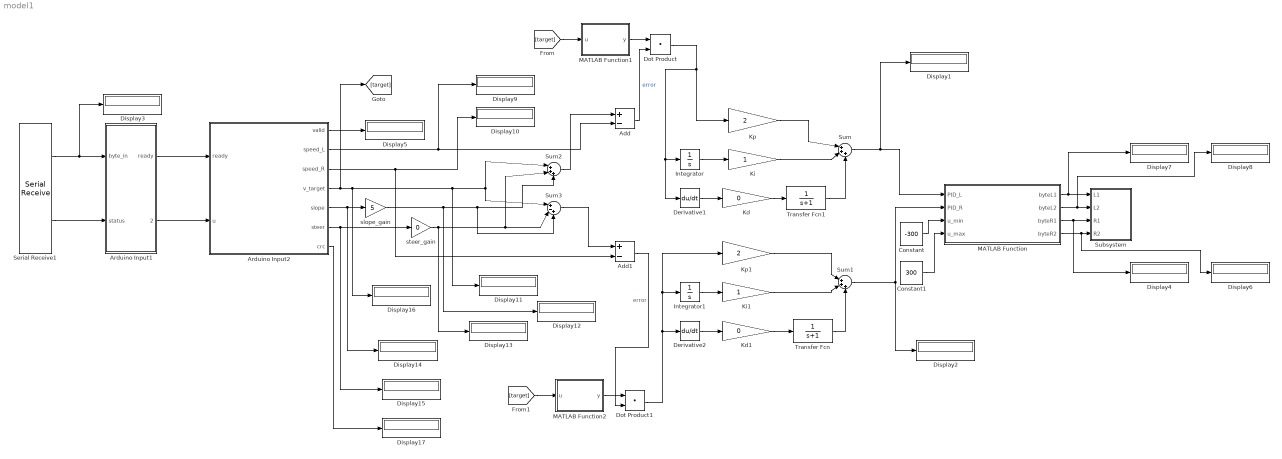
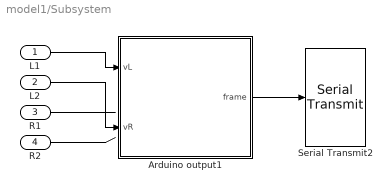
== matlab function model1/MATLAB Function1 ==
function y = fcn(u)

if u<1 && u > -1
    y=0;
else
    y=1;
end

== matlab function model1/MATLAB Function ==
function [byteL1, byteL2, byteR1, byteR2] = encode_pwm_duty(PID_L, PID_R, u_min, u_max)
% PID_L, PID_R : PID 제어기 출력값 (실수형)
% u_min, u_max : PID 출력 예상 범위 (예: -4050 ~ +4050)

% 매핑 대상 범위
min_duty = -1000;
max_duty = 1000;

%% 매핑 함수 정의
map_to_range = @(u) ((u - u_min) / (u_max - u_min)) * (max_duty - min_duty) + min_duty;

% 매핑 수행
dutyL = int16(round(map_to_range(PID_L)));  % 정수로 변환
dutyR = int16(round(map_to_range(PID_R)));

% MSB/LSB 분리
byteL2 = bitand(dutyL, 255);         % LSB
byteL1 = bitshift(dutyL, -8);        % MSB

byteR2 = bitand(dutyR, 255);
byteR1 = bitshift(dutyR, -8);

== matlab function model1/Arduino Input2 ==
function [valid, speed_L, speed_R, v_target, slope, steer, crc] =  Arduino_Input2( ready, u)
% UART 패킷 파서 (persistent 방식으로 이전 값 유지)
% u: [10x1] uint8, 패킷 데이터
% ready: 패킷 유효 신호

%#codegen

% 이전 출력값 저장용 persistent 변수
persistent p_valid p_speed_L p_speed_R p_v_target p_slope p_steer p_crc
 
% 초기화 (최초 실행 시)
if isempty(p_valid)
    p_valid = false;
    p_speed_L = 0.0;
    p_speed_R = 0.0;
    p_v_target = uint16(0);
    p_slope = double(0);
    p_steer = double(0);
    p_crc = uint8(0);
end

% 새로운 데이터가 들어왔을 경우만 업데이트
if ready == 1
    % data_sum = uint16((2)) + uint16(u(3)) + uint16(u(4)) + uint16(u(5)) + uint16(u(6)) + uint16(u(7)) + uint16(u(8)) + uint16(u(9));
    % if (0xFF & data_sum) == 0
        p_valid = true;
        p_speed_L = (double(u(2)-1) + double(u(3)-1)/100)*10;
        p_speed_R = (double(u(4)-1) + double(u(5)-1)/100)*10;
        if u(7)==1
            u(7)=u(7)-1;
        end
        p_v_target = uint16(u(7)-1)*10;
        if double(u(6)) <= 30 && double(u(6)) >= -30
            p_slope = double(u(6));
        end

        if double(u(8)) <= 30 && double(u(8)) >= -30
            p_steer = double(u(8));
        end
        p_crc = u(9);
    % end
end

% 항상 마지막 유효 출력 반환
valid     = p_valid;
speed_L   = p_speed_L;
speed_R   = p_speed_R;
v_target  = p_v_target;
slope     = p_slope;
steer     = p_steer;
crc       = p_crc;

== matlab function model1/Arduino Input1 ==
function [ready, data_out] = uart_parser(byte_in, status)
% UART 프레임 수신기 (Start Byte = 0xAA, Total = 10 bytes)
% 입력: byte_in - 1바이트씩 들어오는 uint8
% 입력: status - Serial Receive의 상태 (1이면 수신 성공)
% 출력: ready - 1이면 패킷 파싱 완료
% 출력: data_out - [1x10] uint8, 패킷 데이터

persistent buffer count collecting

if isempty(buffer)
    buffer = zeros(1, 10, 'uint8');
    count = 0;
    collecting = false;
end

ready = false;
data_out = zeros(1,10,'uint8');

if status == 1
    if ~collecting
        % 아직 수집 시작 전 → start byte 찾기
        if byte_in == hex2dec('AA')
            buffer(1) = byte_in;
            count = 1;
            collecting = true;
        end
    else
        % 수집 중
        count = count + 1;
        buffer(count) = byte_in;

        if count == 10
            data_out = buffer;
            ready = true;
            count = 0;
            collecting = false;
        end
    end
end

== matlab function model1/MATLAB Function2 ==
function y = fcn(u)

if u<1 && u > -1
    y=0;
else
    y=1;
end

== matlab function model1/Subsystem/Arduino output1 ==
function frame = makeFrame(vL, vR)
% 입력:
%   vL, vR : 좌/우 목표 속도 (실수, cm/s 단위)
% 출력:
%   frame : 7-byte UART 전송 프레임 (uint8 벡터)
    frame = zeros(5,1,'uint8');  % 7바이트 프레임

    % 2-3. 목표속도_L (정수 + 소수)
    frame(1) = uint8(floor(vL));                       % 정수부
    frame(2) = uint8(floor(mod(vL * 100, 100)));       % 소수부 (소수점 둘째 자리까지)

    % 4-5. 목표속도_R (정수 + 소수)
    frame(3) = uint8(floor(vR));                       % 정수부
    frame(4) = uint8(floor(mod(vR * 100, 100)));       % 소수부

    % 6. CRC: 256 - (sum of byte 1~5) % 256
    crc = mod(sum(double(frame(1:5))), 256);
    frame(5) = uint8(mod(256 - crc, 256));
    
end

/*
 * Academic License - for use in teaching, academic research, and meeting
 * course requirements at degree granting institutions only.  Not for
 * government, commercial, or other organizational use.
 *
 * File: model1.c
 *
 * Code generated for Simulink model 'model1'.
 *
 * Model version                  : 1.148
 * Simulink Coder version         : 24.2 (R2024b) 21-Jun-2024
 * C/C++ source code generated on : Mon May 26 18:17:13 2025
 *
 * Target selection: ert.tlc
 * Embedded hardware selection: Atmel->AVR
 * Code generation objectives: Unspecified
 * Validation result: Not run
 */

#include "model1.h"
#include "rtwtypes.h"
#include "model1_private.h"
#include <stddef.h>
#include "rt_nonfinite.h"
#include <math.h>

/* Named constants for MATLAB Function: '<Root>/MATLAB Function1' */
#define model1_CALL_EVENT              (-1L)

/* Block signals (default storage) */
B_model1_T model1_B;

/* Continuous states */
X_model1_T model1_X;

/* Disabled State Vector */
XDis_model1_T model1_XDis;

/* Block states (default storage) */
DW_model1_T model1_DW;

/* Real-time model */
static RT_MODEL_model1_T model1_M_;
RT_MODEL_model1_T *const model1_M = &model1_M_;

/* Forward declaration for local functions */
static real_T model1_mod(real_T x);
static void rate_monotonic_scheduler(void);
int16_T div_nde_s16_floor(int16_T numerator, int16_T denominator)
{
  return (((numerator < 0) != (denominator < 0)) && (numerator % denominator !=
           0) ? -1 : 0) + numerator / denominator;
}

/*
 * Set which subrates need to run this base step (base rate always runs).
 * This function must be called prior to calling the model step function
 * in order to remember which rates need to run this base step.  The
 * buffering of events allows for overlapping preemption.
 */
void model1_SetEventsForThisBaseStep(boolean_T *eventFlags)
{
  /* Task runs when its counter is zero, computed via rtmStepTask macro */
  eventFlags[2] = ((boolean_T)rtmStepTask(model1_M, 2));
}

/*
 *         This function updates active task flag for each subrate
 *         and rate transition flags for tasks that exchange data.
 *         The function assumes rate-monotonic multitasking scheduler.
 *         The function must be called at model base rate so that
 *         the generated code self-manages all its subrates and rate
 *         transition flags.
 */
static void rate_monotonic_scheduler(void)
{
  /* To ensure a deterministic data transfer between two rates,
   * data is transferred at the priority of a fast task and the frequency
   * of the slow task.  The following flags indicate when the data transfer
   * happens.  That is, a rate interaction flag is set true when both rates
   * will run, and false otherwise.
   */

  /* tid 1 shares data with slower tid rate: 2 */
  if (model1_M->Timing.TaskCounters.TID[1] == 0) {
    model1_M->Timing.RateInteraction.TID1_2 = (model1_M->
      Timing.TaskCounters.TID[2] == 0);
  }

  /* Compute which subrates run during the next base time step.  Subrates
   * are an integer multiple of the base rate counter.  Therefore, the subtask
   * counter is reset when it reaches its limit (zero means run).
   */
  (model1_M->Timing.TaskCounters.TID[2])++;
  if ((model1_M->Timing.TaskCounters.TID[2]) > 49) {/* Sample time: [0.05s, 0.0s] */
    model1_M->Timing.TaskCounters.TID[2] = 0;
  }
}

/*
 * This function updates continuous states using the ODE3 fixed-step
 * solver algorithm
 */
static void rt_ertODEUpdateContinuousStates(RTWSolverInfo *si )
{
  /* Solver Matrices */
  static const real_T rt_ODE3_A[3] = {
    1.0/2.0, 3.0/4.0, 1.0
  };

  static const real_T rt_ODE3_B[3][3] = {
    { 1.0/2.0, 0.0, 0.0 },

    { 0.0, 3.0/4.0, 0.0 },

    { 2.0/9.0, 1.0/3.0, 4.0/9.0 }
  };

  time_T t = rtsiGetT(si);
  time_T tnew = rtsiGetSolverStopTime(si);
  time_T h = rtsiGetStepSize(si);
  real_T *x = rtsiGetContStates(si);
  ODE3_IntgData *id = (ODE3_IntgData *)rtsiGetSolverData(si);
  real_T *y = id->y;
  real_T *f0 = id->f[0];
  real_T *f1 = id->f[1];
  real_T *f2 = id->f[2];
  real_T hB[3];
  int_T i;
  int_T nXc = 4;
  rtsiSetSimTimeStep(si,MINOR_TIME_STEP);

  /* Save the state values at time t in y, we'll use x as ynew. */
  (void) memcpy(y, x,
                (uint_T)nXc*sizeof(real_T));

  /* Assumes that rtsiSetT and ModelOutputs are up-to-date */
  /* f0 = f(t,y) */
  rtsiSetdX(si, f0);
  model1_derivatives();

  /* f(:,2) = feval(odefile, t + hA(1), y + f*hB(:,1), args(:)(*)); */
  hB[0] = h * rt_ODE3_B[0][0];
  for (i = 0; i < nXc; i++) {
    x[i] = y[i] + (f0[i]*hB[0]);
  }

  rtsiSetT(si, t + h*rt_ODE3_A[0]);
  rtsiSetdX(si, f1);
  model1_step0();
  model1_derivatives();

  /* f(:,3) = feval(odefile, t + hA(2), y + f*hB(:,2), args(:)(*)); */
  for (i = 0; i <= 1; i++) {
    hB[i] = h * rt_ODE3_B[1][i];
  }

  for (i = 0; i < nXc; i++) {
    x[i] = y[i] + (f0[i]*hB[0] + f1[i]*hB[1]);
  }

  rtsiSetT(si, t + h*rt_ODE3_A[1]);
  rtsiSetdX(si, f2);
  model1_step0();
  model1_derivatives();

  /* tnew = t + hA(3);
     ynew = y + f*hB(:,3); */
  for (i = 0; i <= 2; i++) {
    hB[i] = h * rt_ODE3_B[2][i];
  }

  for (i = 0; i < nXc; i++) {
    x[i] = y[i] + (f0[i]*hB[0] + f1[i]*hB[1] + f2[i]*hB[2]);
  }

  rtsiSetT(si, tnew);
  rtsiSetSimTimeStep(si,MAJOR_TIME_STEP);
}

/*
 * System initialize for atomic system:
 *    '<Root>/MATLAB Function1'
 *    '<Root>/MATLAB Function2'
 */
void model1_MATLABFunction1_Init(DW_MATLABFunction1_model1_T *localDW)
{
  localDW->sfEvent = model1_CALL_EVENT;
}

/*
 * Output and update for atomic system:
 *    '<Root>/MATLAB Function1'
 *    '<Root>/MATLAB Function2'
 */
void model1_MATLABFunction1(uint16_T rtu_u, real_T *rty_y,
  DW_MATLABFunction1_model1_T *localDW)
{
  localDW->sfEvent = model1_CALL_EVENT;
  *rty_y = (rtu_u >= 1U);
}

real_T rt_roundd_snf(real_T u)
{
  real_T y;
  if (fabs(u) < 4.503599627370496E+15) {
    if (u >= 0.5) {
      y = floor(u + 0.5);
    } else if (u > -0.5) {
      y = u * 0.0;
    } else {
      y = ceil(u - 0.5);
    }
  } else {
    y = u;
  }

  return y;
}

/* Function for MATLAB Function: '<S6>/Arduino output1' */
static real_T model1_mod(real_T x)
{
  real_T r;
  if (rtIsNaN(x)) {
    r = (rtNaN);
  } else if (rtIsInf(x)) {
    r = (rtNaN);
  } else if (x == 0.0) {
    r = 0.0;
  } else {
    r = fmod(x, 256.0);
    if (r == 0.0) {
      r = 0.0;
    } else if (r < 0.0) {
      r += 256.0;
    }
  }

  return r;
}

/* Model step function for TID0 */
void model1_step0(void)                /* Sample time: [0.0s, 0.0s] */
{
  if (rtmIsMajorTimeStep(model1_M)) {
    /* set solver stop time */
    rtsiSetSolverStopTime(&model1_M->solverInfo,((model1_M->Timing.clockTick0+1)*
      model1_M->Timing.stepSize0));

    {                                  /* Sample time: [0.0s, 0.0s] */
      rate_monotonic_scheduler();
    }
  }                                    /* end MajorTimeStep */

  /* Update absolute time of base rate at minor time step */
  if (rtmIsMinorTimeStep(model1_M)) {
    model1_M->Timing.t[0] = rtsiGetT(&model1_M->solverInfo);
  }

  {
    real_T rtb_Derivative1;
    real_T y_o;
    real_T *lastU;
    int16_T i;
    int16_T tmp_0;
    uint16_T qY;
    uint16_T qY_0;
    uint8_T data_out[10];
    uint8_T b_status;
    boolean_T tmp;
    tmp = rtmIsMajorTimeStep(model1_M);
    if (tmp) {
      /* MATLABSystem: '<Root>/Serial Receive1' */
      MW_Serial_read(1, 1U, &model1_B.SerialReceive1_o1, &b_status, NULL, 0.0,
                     NULL, 0.0);

      /* MATLAB Function: '<Root>/Arduino Input1' incorporates:
       *  MATLABSystem: '<Root>/Serial Receive1'
       * */
      if (b_status == 1) {
        if (!model1_DW.collecting) {
          if (model1_B.SerialReceive1_o1 == 170) {
            model1_DW.buffer[0] = model1_B.SerialReceive1_o1;
            model1_DW.count = 1.0;
            model1_DW.collecting = true;
          }
        } else {
          model1_DW.count++;
          model1_DW.buffer[(int16_T)model1_DW.count - 1] =
            model1_B.SerialReceive1_o1;
          if (model1_DW.count == 10.0) {
            for (i = 0; i < 10; i++) {
              data_out[i] = model1_DW.buffer[i];
            }

            model1_DW.count = 0.0;
            model1_DW.collecting = false;

            /* MATLAB Function: '<Root>/Arduino Input2' */
            model1_DW.p_valid = true;
            qY = data_out[1] - 1U;
            if (data_out[1] - 1U > data_out[1]) {
              qY = 0U;
            }

            qY_0 = data_out[2] - 1U;
            if (data_out[2] - 1U > data_out[2]) {
              qY_0 = 0U;
            }

            model1_DW.p_speed_L = ((real_T)(int16_T)qY_0 / 100.0 + (real_T)
              (int16_T)qY) * 10.0;
            qY = data_out[3] - 1U;
            if (data_out[3] - 1U > data_out[3]) {
              qY = 0U;
            }

            qY_0 = data_out[4] - 1U;
            if (data_out[4] - 1U > data_out[4]) {
              qY_0 = 0U;
            }

            model1_DW.p_speed_R = ((real_T)(int16_T)qY_0 / 100.0 + (real_T)
              (int16_T)qY) * 10.0;
            if (data_out[6] == 1) {
              data_out[6] = 0U;
            }

            qY = data_out[6] - 1U;
            if (data_out[6] - 1U > data_out[6]) {
              qY = 0U;
            }

            model1_DW.p_v_target = qY * 10U;
            if (data_out[5] <= 30) {
              model1_DW.p_slope = data_out[5];
            }

            if (data_out[7] <= 30) {
              model1_DW.p_steer = data_out[7];
            }

            model1_DW.p_crc = data_out[8];
          }
        }
      }

      /* End of MATLAB Function: '<Root>/Arduino Input1' */

      /* MATLAB Function: '<Root>/Arduino Input2' */
      model1_B.valid = model1_DW.p_valid;
      model1_B.speed_L = model1_DW.p_speed_L;
      model1_B.speed_R = model1_DW.p_speed_R;
      model1_B.v_target = model1_DW.p_v_target;
      model1_B.slope = model1_DW.p_slope;
      model1_B.steer = model1_DW.p_steer;
      model1_B.crc = model1_DW.p_crc;

      /* MATLAB Function: '<Root>/MATLAB Function1' */
      model1_MATLABFunction1(model1_B.v_target, &y_o,
        &model1_DW.sf_MATLABFunction1);

      /* Gain: '<Root>/steer_gain' */
      model1_B.steer_gain = model1_P.steer_gain_Gain * model1_B.steer;

      /* Gain: '<Root>/slope_gain' */
      model1_B.slope_gain = model1_P.slope_gain_Gain * model1_B.slope;

      /* DotProduct: '<Root>/Dot Product' incorporates:
       *  Sum: '<Root>/Add'
       *  Sum: '<Root>/Sum2'
       */
      model1_B.DotProduct = ((((real_T)model1_B.v_target + model1_B.steer_gain)
        + model1_B.slope_gain) - model1_B.speed_L) * y_o;

      /* Gain: '<Root>/Kp' */
      model1_B.Kp = model1_P.Kp_Gain * model1_B.DotProduct;
    }

    /* Sum: '<Root>/Sum' incorporates:
     *  Gain: '<Root>/Ki'
     *  Integrator: '<Root>/Integrator'
     *  TransferFcn: '<Root>/Transfer Fcn1'
     */
    model1_B.Sum = (model1_P.Ki_Gain * model1_X.Integrator_CSTATE + model1_B.Kp)
      + model1_P.TransferFcn1_C * model1_X.TransferFcn1_CSTATE;
    if (tmp) {
      /* MATLAB Function: '<Root>/MATLAB Function2' */
      model1_MATLABFunction1(model1_B.v_target, &y_o,
        &model1_DW.sf_MATLABFunction2);

      /* DotProduct: '<Root>/Dot Product1' incorporates:
       *  Sum: '<Root>/Add1'
       *  Sum: '<Root>/Sum3'
       */
      model1_B.DotProduct1 = ((((real_T)model1_B.v_target - model1_B.steer_gain)
        + model1_B.slope_gain) - model1_B.speed_R) * y_o;

      /* Gain: '<Root>/Kp1' */
      model1_B.Kp1 = model1_P.Kp1_Gain * model1_B.DotProduct1;
    }

    /* Sum: '<Root>/Sum1' incorporates:
     *  Gain: '<Root>/Ki1'
     *  Integrator: '<Root>/Integrator1'
     *  TransferFcn: '<Root>/Transfer Fcn'
     */
    model1_B.Sum1 = (model1_P.Ki1_Gain * model1_X.Integrator1_CSTATE +
                     model1_B.Kp1) + model1_P.TransferFcn_C *
      model1_X.TransferFcn_CSTATE;

    /* MATLAB Function: '<Root>/MATLAB Function' incorporates:
     *  Constant: '<Root>/Constant'
     *  Constant: '<Root>/Constant1'
     */
    rtb_Derivative1 = model1_P.Constant1_Value - model1_P.Constant_Value;
    y_o = rt_roundd_snf((model1_B.Sum - model1_P.Constant_Value) /
                        rtb_Derivative1 * 2000.0 - 1000.0);
    if (y_o < 32768.0) {
      if (y_o >= -32768.0) {
        tmp_0 = (int16_T)y_o;
      } else {
        tmp_0 = MIN_int16_T;
      }
    } else {
      tmp_0 = MAX_int16_T;
    }

    y_o = rt_roundd_snf((model1_B.Sum1 - model1_P.Constant_Value) /
                        rtb_Derivative1 * 2000.0 - 1000.0);
    if (y_o < 32768.0) {
      if (y_o >= -32768.0) {
        i = (int16_T)y_o;
      } else {
        i = MIN_int16_T;
      }
    } else {
      i = MAX_int16_T;
    }

    model1_B.byteL2 = (int16_T)((uint16_T)tmp_0 & 255U);
    model1_B.byteL1 = tmp_0 >> 8;
    model1_B.byteR2 = (int16_T)((uint16_T)i & 255U);
    model1_B.byteR1 = i >> 8;

    /* End of MATLAB Function: '<Root>/MATLAB Function' */
    if (tmp) {
      /* RateTransition generated from: '<Root>/Subsystem' */
      if (model1_M->Timing.RateInteraction.TID1_2) {
        model1_DW.byteL1_Buffer = model1_B.byteL1;

        /* RateTransition generated from: '<Root>/Subsystem' */
        model1_DW.byteL2_Buffer = model1_B.byteL2;
      }

      /* End of RateTransition generated from: '<Root>/Subsystem' */
    }

    /* Derivative: '<Root>/Derivative2' incorporates:
     *  Derivative: '<Root>/Derivative1'
     */
    y_o = model1_M->Timing.t[0];
    if ((model1_DW.TimeStampA >= y_o) && (model1_DW.TimeStampB >= y_o)) {
      rtb_Derivative1 = 0.0;
    } else {
      rtb_Derivative1 = model1_DW.TimeStampA;
      lastU = &model1_DW.LastUAtTimeA;
      if (model1_DW.TimeStampA < model1_DW.TimeStampB) {
        if (model1_DW.TimeStampB < y_o) {
          rtb_Derivative1 = model1_DW.TimeStampB;
          lastU = &model1_DW.LastUAtTimeB;
        }
      } else if (model1_DW.TimeStampA >= y_o) {
        rtb_Derivative1 = model1_DW.TimeStampB;
        lastU = &model1_DW.LastUAtTimeB;
      }

      rtb_Derivative1 = (model1_B.DotProduct1 - *lastU) / (y_o - rtb_Derivative1);
    }

    /* End of Derivative: '<Root>/Derivative2' */

    /* Gain: '<Root>/Kd1' */
    model1_B.Kd1 = model1_P.Kd1_Gain * rtb_Derivative1;
    if (tmp) {
    }

    /* Derivative: '<Root>/Derivative1' */
    if ((model1_DW.TimeStampA_i >= y_o) && (model1_DW.TimeStampB_a >= y_o)) {
      rtb_Derivative1 = 0.0;
    } else {
      rtb_Derivative1 = model1_DW.TimeStampA_i;
      lastU = &model1_DW.LastUAtTimeA_e;
      if (model1_DW.TimeStampA_i < model1_DW.TimeStampB_a) {
        if (model1_DW.TimeStampB_a < y_o) {
          rtb_Derivative1 = model1_DW.TimeStampB_a;
          lastU = &model1_DW.LastUAtTimeB_c;
        }
      } else if (model1_DW.TimeStampA_i >= y_o) {
        rtb_Derivative1 = model1_DW.TimeStampB_a;
        lastU = &model1_DW.LastUAtTimeB_c;
      }

      rtb_Derivative1 = (model1_B.DotProduct - *lastU) / (y_o - rtb_Derivative1);
    }

    /* Gain: '<Root>/Kd' */
    model1_B.Kd = model1_P.Kd_Gain * rtb_Derivative1;
    if (tmp) {
    }
  }

  if (rtmIsMajorTimeStep(model1_M)) {
    real_T *lastU;

    /* Update for Derivative: '<Root>/Derivative2' */
    if (model1_DW.TimeStampA == (rtInf)) {
      model1_DW.TimeStampA = model1_M->Timing.t[0];
      lastU = &model1_DW.LastUAtTimeA;
    } else if (model1_DW.TimeStampB == (rtInf)) {
      model1_DW.TimeStampB = model1_M->Timing.t[0];
      lastU = &model1_DW.LastUAtTimeB;
    } else if (model1_DW.TimeStampA < model1_DW.TimeStampB) {
      model1_DW.TimeStampA = model1_M->Timing.t[0];
      lastU = &model1_DW.LastUAtTimeA;
    } else {
      model1_DW.TimeStampB = model1_M->Timing.t[0];
      lastU = &model1_DW.LastUAtTimeB;
    }

    *lastU = model1_B.DotProduct1;

    /* End of Update for Derivative: '<Root>/Derivative2' */

    /* Update for Derivative: '<Root>/Derivative1' */
    if (model1_DW.TimeStampA_i == (rtInf)) {
      model1_DW.TimeStampA_i = model1_M->Timing.t[0];
      lastU = &model1_DW.LastUAtTimeA_e;
    } else if (model1_DW.TimeStampB_a == (rtInf)) {
      model1_DW.TimeStampB_a = model1_M->Timing.t[0];
      lastU = &model1_DW.LastUAtTimeB_c;
    } else if (model1_DW.TimeStampA_i < model1_DW.TimeStampB_a) {
      model1_DW.TimeStampA_i = model1_M->Timing.t[0];
      lastU = &model1_DW.LastUAtTimeA_e;
    } else {
      model1_DW.TimeStampB_a = model1_M->Timing.t[0];
      lastU = &model1_DW.LastUAtTimeB_c;
    }

    *lastU = model1_B.DotProduct;

    /* End of Update for Derivative: '<Root>/Derivative1' */
    {
      extmodeErrorCode_T returnCode = EXTMODE_SUCCESS;
      extmodeSimulationTime_T extmodeTime = (extmodeSimulationTime_T)
        ((model1_M->Timing.clockTick1 * 1) + 0);

      /* Trigger External Mode event */
      returnCode = extmodeEvent(1, extmodeTime);
      if (returnCode != EXTMODE_SUCCESS) {
        /* Code to handle External Mode event errors
           may be added here */
      }
    }
  }                                    /* end MajorTimeStep */

  if (rtmIsMajorTimeStep(model1_M)) {
    rt_ertODEUpdateContinuousStates(&model1_M->solverInfo);

    /* Update absolute time */
    /* The "clockTick0" counts the number of times the code of this task has
     * been executed. The absolute time is the multiplication of "clockTick0"
     * and "Timing.stepSize0". Size of "clockTick0" ensures timer will not
     * overflow during the application lifespan selected.
     */
    ++model1_M->Timing.clockTick0;
    model1_M->Timing.t[0] = rtsiGetSolverStopTime(&model1_M->solverInfo);

    /* Update absolute time */
    /* The "clockTick1" counts the number of times the code of this task has
     * been executed. The resolution of this integer timer is 0.001, which is the step size
     * of the task. Size of "clockTick1" ensures timer will not overflow during the
     * application lifespan selected.
     */
    model1_M->Timing.clockTick1++;
  }                                    /* end MajorTimeStep */
}

/* Derivatives for root system: '<Root>' */
void model1_derivatives(void)
{
  XDot_model1_T *_rtXdot;
  _rtXdot = ((XDot_model1_T *) model1_M->derivs);

  /* Derivatives for Integrator: '<Root>/Integrator' */
  _rtXdot->Integrator_CSTATE = model1_B.DotProduct;

  /* Derivatives for TransferFcn: '<Root>/Transfer Fcn1' */
  _rtXdot->TransferFcn1_CSTATE = model1_P.TransferFcn1_A *
    model1_X.TransferFcn1_CSTATE;
  _rtXdot->TransferFcn1_CSTATE += model1_B.Kd;

  /* Derivatives for Integrator: '<Root>/Integrator1' */
  _rtXdot->Integrator1_CSTATE = model1_B.DotProduct1;

  /* Derivatives for TransferFcn: '<Root>/Transfer Fcn' */
  _rtXdot->TransferFcn_CSTATE = model1_P.TransferFcn_A *
    model1_X.TransferFcn_CSTATE;
  _rtXdot->TransferFcn_CSTATE += model1_B.Kd1;
}

/* Model step function for TID2 */
void model1_step2(void)                /* Sample time: [0.05s, 0.0s] */
{
  real_T tmp;
  int32_T tmp_3;
  int16_T tmp_0;
  int16_T tmp_1;
  int16_T tmp_2;
  int16_T tmp_4;
  uint8_T frame[5];
  uint8_T varargin_10;
  uint8_T varargin_9;

  /* Outputs for Atomic SubSystem: '<Root>/Subsystem' */
  /* MATLAB Function: '<S6>/Arduino output1' incorporates:
   *  RateTransition generated from: '<Root>/Subsystem'
   * */
  tmp_4 = model1_DW.byteL1_Buffer;
  if (model1_DW.byteL1_Buffer < 0) {
    tmp_4 = 0;
  } else if (model1_DW.byteL1_Buffer > 255) {
    tmp_4 = 255;
  }

  frame[0] = (uint8_T)tmp_4;
  tmp_3 = model1_DW.byteL1_Buffer * 100L;
  if (tmp_3 > 32767L) {
    tmp_3 = 32767L;
  } else if (tmp_3 < -32768L) {
    tmp_3 = -32768L;
  }

  tmp_2 = (int16_T)tmp_3 - div_nde_s16_floor((int16_T)tmp_3, 100) * 100;
  if (tmp_2 < 0) {
    tmp_2 = 0;
  } else if (tmp_2 > 255) {
    tmp_2 = 255;
  }

  frame[1] = (uint8_T)tmp_2;
  tmp_1 = model1_DW.byteL2_Buffer;
  if (model1_DW.byteL2_Buffer < 0) {
    tmp_1 = 0;
  } else if (model1_DW.byteL2_Buffer > 255) {
    tmp_1 = 255;
  }

  frame[2] = (uint8_T)tmp_1;
  tmp_3 = model1_DW.byteL2_Buffer * 100L;
  if (tmp_3 > 32767L) {
    tmp_3 = 32767L;
  } else if (tmp_3 < -32768L) {
    tmp_3 = -32768L;
  }

  tmp_0 = (int16_T)tmp_3 - div_nde_s16_floor((int16_T)tmp_3, 100) * 100;
  if (tmp_0 < 0) {
    tmp_0 = 0;
  } else if (tmp_0 > 255) {
    tmp_0 = 255;
  }

  frame[3] = (uint8_T)tmp_0;
  tmp = rt_roundd_snf(model1_mod(256.0 - model1_mod((real_T)((((uint8_T)tmp_4 +
    tmp_2) + (uint8_T)tmp_1) + tmp_0))));
  if (tmp < 256.0) {
    if (tmp >= 0.0) {
      frame[4] = (uint8_T)tmp;
    } else {
      frame[4] = 0U;
    }
  } else {
    frame[4] = MAX_uint8_T;
  }

  /* End of MATLAB Function: '<S6>/Arduino output1' */

  /* MATLABSystem: '<S6>/Serial Transmit2' */
  varargin_9 = 85U;
  varargin_10 = 170U;
  MW_Serial_write(model1_DW.obj.port, &frame[0], 5.0,
                  model1_DW.obj.dataSizeInBytes, model1_DW.obj.sendModeEnum,
                  model1_DW.obj.dataType, model1_DW.obj.sendFormatEnum, 2.0,
                  '\x00', &varargin_9, 1.0, &varargin_10, 1.0);

  /* End of Outputs for SubSystem: '<Root>/Subsystem' */

  /* Update absolute time */
  /* The "clockTick2" counts the number of times the code of this task has
   * been executed. The resolution of this integer timer is 0.05, which is the step size
   * of the task. Size of "clockTick2" ensures timer will not overflow during the
   * application lifespan selected.
   */
  model1_M->Timing.clockTick2++;
}
